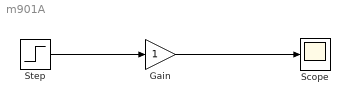
/*
 * m901A.c
 * 
 * Real-Time Workshop code generation for Simulink model "m901A.mdl".
 *
 * Model Version              : 1.1
 * Real-Time Workshop version : 6.1  (R14SP1)  05-Sep-2004
 * C source code generated on : Fri Apr 29 08:34:08 2005
 */

#include "m901A.h"
#include "m901A_private.h"

/* Block signals (auto storage) */
BlockIO_m901A m901A_B;

/* Block states (auto storage) */
D_Work_m901A m901A_DWork;

/* Real-time model */
rtModel_m901A m901A_M_;
rtModel_m901A *m901A_M = &m901A_M_;

/* Model output function */
static void m901A_output(int_T tid)
{

  /* local block i/o variables */

  real_T rtb_Step;

  /* Step: '<Root>/Step' */
  {
    real_T currentTime = m901A_M->Timing.t[0];
    if (currentTime < m901A_P.Step_Time) {
      rtb_Step = m901A_P.Step_Y0;
    } else {
      rtb_Step = m901A_P.Step_YFinal;
    }
  }

  /* Gain: '<Root>/Gain' */
  m901A_B.Gain = rtb_Step * m901A_P.Gain_Gain;

  /* Scope: '<Root>/Scope' */
  {
    real_T u[2];
    u[0] = m901A_M->Timing.t[1];
    u[1] = m901A_B.Gain;
    rt_UpdateLogVar(m901A_DWork.Scope_PWORK.LoggedData, u);
  }
}

/* Model update function */
static void m901A_update(int_T tid)
{

  /* Update absolute time for base rate */

  if(!(++m901A_M->Timing.clockTick0)) ++m901A_M->Timing.clockTickH0;
  m901A_M->Timing.t[0] = m901A_M->Timing.clockTick0 * m901A_M->Timing.stepSize0
    + m901A_M->Timing.clockTickH0 * m901A_M->Timing.stepSize0 * 4294967296.0;

  {
    /* Update absolute timer for sample time: [0.5s, 0.0s] */

    if(!(++m901A_M->Timing.clockTick1)) ++m901A_M->Timing.clockTickH1;
    m901A_M->Timing.t[1] = m901A_M->Timing.clockTick1 *
      m901A_M->Timing.stepSize1 + m901A_M->Timing.clockTickH1 *
      m901A_M->Timing.stepSize1 * 4294967296.0;
  }
}
